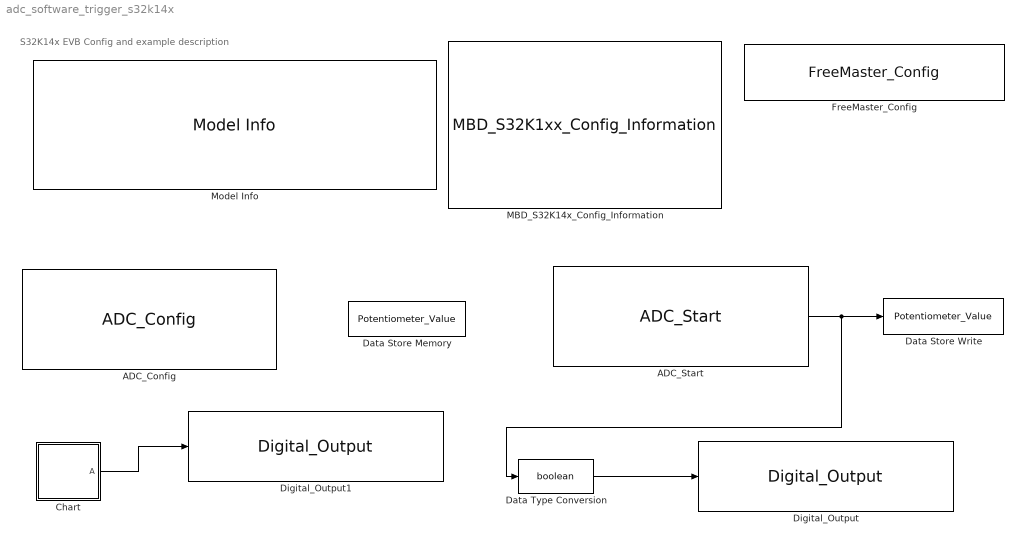
== stateflow chart Chart ==
  state A
  state A1
  (default) -> A
  A -> A1
  data: A output boolean [0..1]

/*
 * Academic License - for use in teaching, academic research, and meeting
 * course requirements at degree granting institutions only.  Not for
 * government, commercial, or other organizational use.
 *
 * File: adc_software_trigger_s32k14x.c
 *
 * Code generated for Simulink model 'adc_software_trigger_s32k14x'.
 *
 * Model version                  : 1.112
 * Simulink Coder version         : 9.0 (R2018b) 24-May-2018
 * C/C++ source code generated on : Sun Apr  5 17:12:23 2020
 *
 * Target selection: mbd_s32k.tlc
 * Embedded hardware selection: ARM Compatible->ARM Cortex
 * Code generation objectives: Unspecified
 * Validation result: Not run
 */

#include "adc_software_trigger_s32k14x.h"
#include "adc_software_trigger_s32k14x_private.h"

/* Named constants for Chart: '<Root>/Chart' */
#define adc_software_IN_NO_ACTIVE_CHILD ((uint8_T)0U)
#define adc_software_trigger_s32k1_IN_A ((uint8_T)1U)
#define adc_software_trigger_s32k_IN_A1 ((uint8_T)2U)

/* Exported data definition */

/* Volatile memory section */
/* Definition for custom storage class: Volatile */
volatile uint32_T Potentiometer_Value;

/* Block signals (default storage) */
B_adc_software_trigger_s32k14_T adc_software_trigger_s32k14x_B;

/* Block states (default storage) */
DW_adc_software_trigger_s32k1_T adc_software_trigger_s32k14x_DW;

/* Real-time model */
RT_MODEL_adc_software_trigger_T adc_software_trigger_s32k14x_M_;
RT_MODEL_adc_software_trigger_T *const adc_software_trigger_s32k14x_M =
  &adc_software_trigger_s32k14x_M_;

/* Model step function */
void adc_software_trigger_s32k14x_step(void)
{
  /* S-Function (adc_s32k_start): '<Root>/ADC_Start' */
  {
    adc_chan_config_t adc0_chan_cfg = {
      .interruptEnable = false,
      .channel = ADC_INPUTCHAN_EXT3
    };

    /* Initialize channel configuration of ADC0. */
    ADC_DRV_ConfigChan(0, 0, &adc0_chan_cfg);
    uint16_t result;

    /* Get conversion result of ADC0 */
    ADC_DRV_WaitConvDone(0);
    ADC_DRV_GetChanResult(0, 0, &result);
    adc_software_trigger_s32k14x_B.ADC_Start = result;
  }

  /* DataStoreWrite: '<Root>/Data Store Write' */
  Potentiometer_Value = adc_software_trigger_s32k14x_B.ADC_Start;

  /* DataTypeConversion: '<Root>/Data Type Conversion' */
  adc_software_trigger_s32k14x_B.DataTypeConversion =
    (adc_software_trigger_s32k14x_B.ADC_Start != 0U);

  /* S-Function (gpio_s32k_output): '<Root>/Digital_Output' */

  /* GPOPORTD15 Data Signal Update */
  if (adc_software_trigger_s32k14x_B.DataTypeConversion) {
    PINS_DRV_SetPins(PTD, 1UL<<15);
  } else {
    PINS_DRV_ClearPins(PTD, 1UL<<15);
  }

  /* Chart: '<Root>/Chart' */
  if (adc_software_trigger_s32k14x_DW.is_active_c3_adc_software_trigg == 0U) {
    adc_software_trigger_s32k14x_DW.is_active_c3_adc_software_trigg = 1U;
    adc_software_trigger_s32k14x_DW.is_c3_adc_software_trigger_s32k =
      adc_software_trigger_s32k1_IN_A;
    adc_software_trigger_s32k14x_B.A = true;
  } else {
    if (adc_software_trigger_s32k14x_DW.is_c3_adc_software_trigger_s32k ==
        adc_software_trigger_s32k1_IN_A) {
      adc_software_trigger_s32k14x_B.A = false;
      adc_software_trigger_s32k14x_DW.is_c3_adc_software_trigger_s32k =
        adc_software_trigger_s32k_IN_A1;
    }
  }

  /* End of Chart: '<Root>/Chart' */

  /* S-Function (gpio_s32k_output): '<Root>/Digital_Output1' */

  /* GPOPORTD0 Data Signal Update */
  if (adc_software_trigger_s32k14x_B.A) {
    PINS_DRV_SetPins(PTD, 1UL<<0);
  } else {
    PINS_DRV_ClearPins(PTD, 1UL<<0);
  }
}
